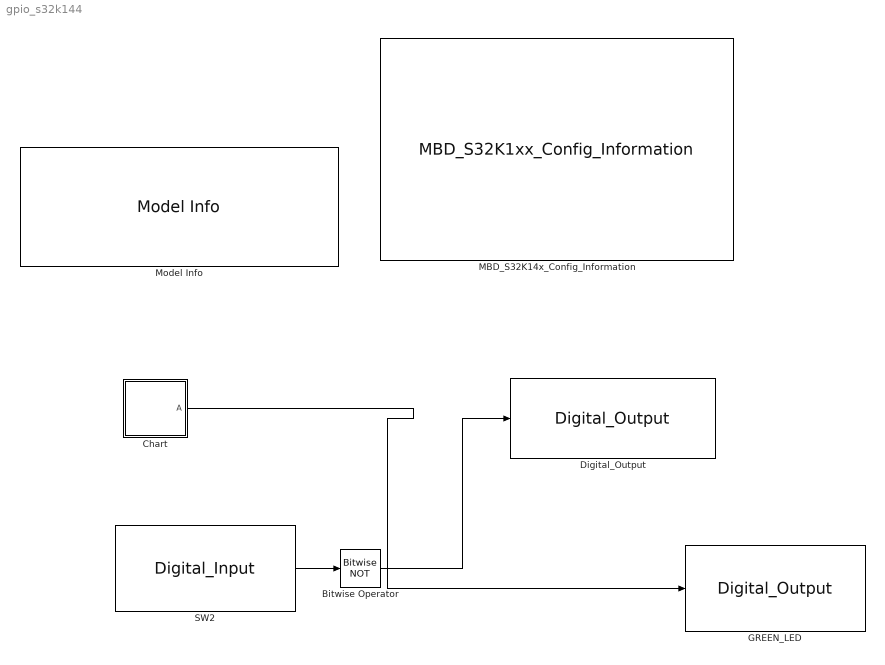
== stateflow chart Chart ==
  state A
  state A1
  (default) -> A
  A -> A1
  A1 -> A
  data: A output boolean [0..1]

/*
 * Academic License - for use in teaching, academic research, and meeting
 * course requirements at degree granting institutions only.  Not for
 * government, commercial, or other organizational use.
 *
 * File: gpio_s32k144.c
 *
 * Code generated for Simulink model 'gpio_s32k144'.
 *
 * Model version                   : 1.74
 * Simulink Coder version          : 9.0 (R2018b) 24-May-2018
 * MBDT for S32K1xx Series Version : 4.1.0 (R2017b-R2019a) 22-Jul-2019
 * C/C++ source code generated on  : Sat Apr  4 20:50:14 2020
 *
 * Target selection: mbd_s32k.tlc
 * Embedded hardware selection: ARM Compatible->ARM Cortex
 * Code generation objectives: Unspecified
 * Validation result: Not run
 */

#include "gpio_s32k144.h"
#include "gpio_s32k144_private.h"

/* Named constants for Chart: '<Root>/Chart' */
#define gpio_s32k144_IN_A              ((uint8_T)1U)
#define gpio_s32k144_IN_A1             ((uint8_T)2U)
#define gpio_s32k144_IN_NO_ACTIVE_CHILD ((uint8_T)0U)

/* Block signals (default storage) */
B_gpio_s32k144_T gpio_s32k144_B;

/* Block states (default storage) */
DW_gpio_s32k144_T gpio_s32k144_DW;

/* Real-time model */
RT_MODEL_gpio_s32k144_T gpio_s32k144_M_;
RT_MODEL_gpio_s32k144_T *const gpio_s32k144_M = &gpio_s32k144_M_;

/* Model step function */
void gpio_s32k144_step(void)
{
  /* S-Function (gpio_s32k_input): '<Root>/SW2' */

  /* GPIPORTC12 signal update */
  gpio_s32k144_B.SW2 = (PINS_DRV_ReadPins(PTC) >> 12) & 0x01;

  /* S-Function (sfix_bitop): '<Root>/Bitwise Operator' */
  gpio_s32k144_B.BitwiseOperator = !gpio_s32k144_B.SW2;

  /* S-Function (gpio_s32k_output): '<Root>/Digital_Output' */

  /* GPOPORTD0 Data Signal Update */
  if (gpio_s32k144_B.BitwiseOperator) {
    PINS_DRV_SetPins(PTD, 1UL<<0);
  } else {
    PINS_DRV_ClearPins(PTD, 1UL<<0);
  }

  /* Chart: '<Root>/Chart' */
  /* Gateway: Chart */
  /* During: Chart */
  if (gpio_s32k144_DW.is_active_c3_gpio_s32k144 == 0U) {
    /* Entry: Chart */
    gpio_s32k144_DW.is_active_c3_gpio_s32k144 = 1U;

    /* Entry Internal: Chart */
    /* Transition: '<S1>:1' */
    gpio_s32k144_DW.is_c3_gpio_s32k144 = gpio_s32k144_IN_A;
    gpio_s32k144_B.A = true;
  } else if (gpio_s32k144_DW.is_c3_gpio_s32k144 == gpio_s32k144_IN_A) {
    /* During 'A': '<S1>:3' */
    /* Transition: '<S1>:7' */
    gpio_s32k144_B.A = false;
    gpio_s32k144_DW.is_c3_gpio_s32k144 = gpio_s32k144_IN_A1;
  } else {
    /* During 'A1': '<S1>:6' */
    /* Transition: '<S1>:8' */
    gpio_s32k144_DW.is_c3_gpio_s32k144 = gpio_s32k144_IN_A;
    gpio_s32k144_B.A = true;
  }

  /* End of Chart: '<Root>/Chart' */

  /* S-Function (gpio_s32k_output): '<Root>/GREEN_LED' */

  /* GPOPORTD16 Data Signal Update */
  if (gpio_s32k144_B.A) {
    PINS_DRV_SetPins(PTD, 1UL<<16);
  } else {
    PINS_DRV_ClearPins(PTD, 1UL<<16);
  }
}
